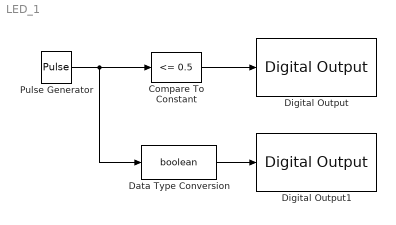
/*
 * File: LED_1.c
 *
 * Code generated for Simulink model 'LED_1'.
 *
 * Model version                  : 1.2
 * Simulink Coder version         : 9.5 (R2021a) 14-Nov-2020
 * C/C++ source code generated on : Wed Dec 20 09:48:06 2023
 *
 * Target selection: ert.tlc
 * Embedded hardware selection: Atmel->AVR
 * Code generation objectives: Unspecified
 * Validation result: Not run
 */

#include "LED_1.h"
#include "LED_1_private.h"

/* Block states (default storage) */
DW_LED_1_T LED_1_DW;

/* Real-time model */
static RT_MODEL_LED_1_T LED_1_M_;
RT_MODEL_LED_1_T *const LED_1_M = &LED_1_M_;

/* Model step function */
void LED_1_step(void)
{
  real_T rtb_PulseGenerator;

  /* DiscretePulseGenerator: '<Root>/Pulse Generator' */
  rtb_PulseGenerator = (LED_1_DW.clockTickCounter < LED_1_P.PulseGenerator_Duty)
    && (LED_1_DW.clockTickCounter >= 0L) ? LED_1_P.PulseGenerator_Amp : 0.0;
  if (LED_1_DW.clockTickCounter >= LED_1_P.PulseGenerator_Period - 1.0) {
    LED_1_DW.clockTickCounter = 0L;
  } else {
    LED_1_DW.clockTickCounter++;
  }

  /* End of DiscretePulseGenerator: '<Root>/Pulse Generator' */

  /* MATLABSystem: '<Root>/Digital Output' incorporates:
   *  Constant: '<S1>/Constant'
   *  RelationalOperator: '<S1>/Compare'
   */
  writeDigitalPin(9, (uint8_T)(rtb_PulseGenerator <=
    LED_1_P.CompareToConstant_const));

  /* MATLABSystem: '<Root>/Digital Output1' incorporates:
   *  DataTypeConversion: '<Root>/Data Type Conversion'
   */
  writeDigitalPin(10, (uint8_T)(rtb_PulseGenerator != 0.0));
}
